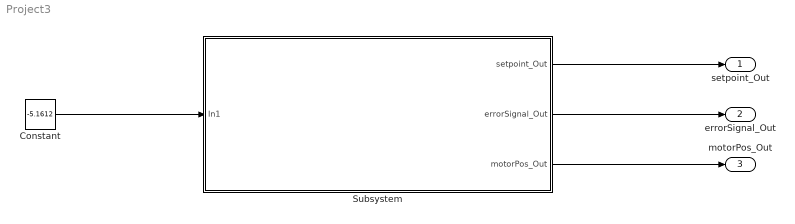
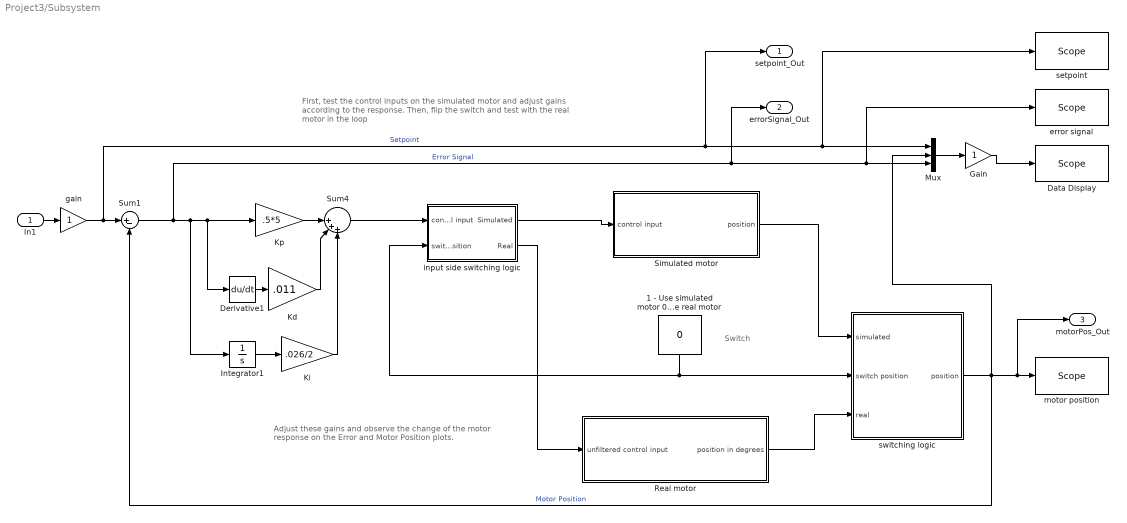
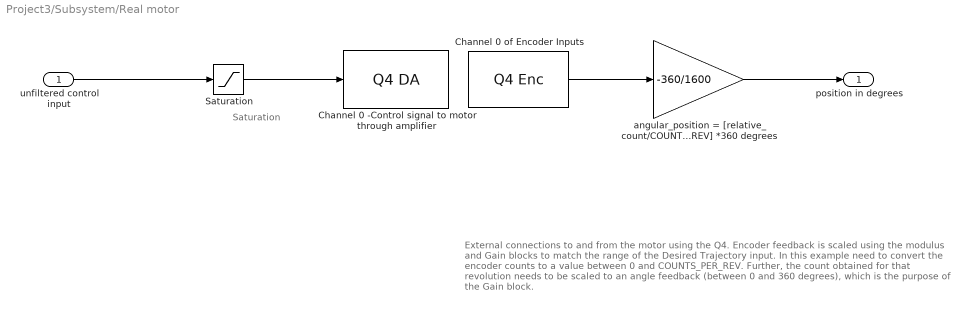
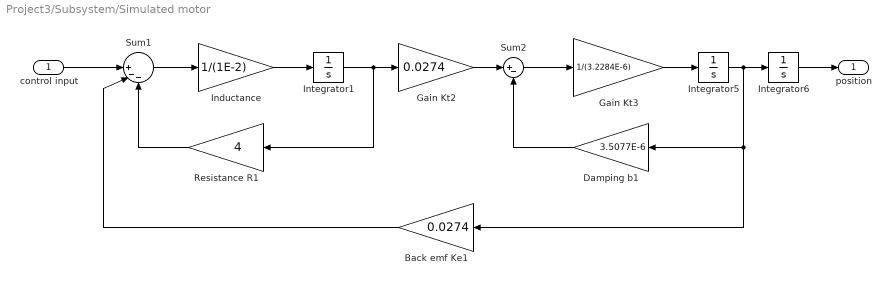
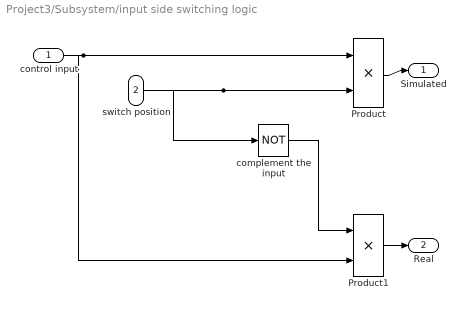
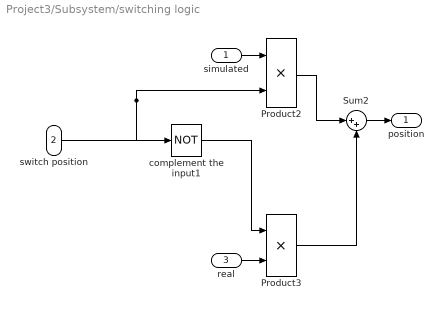
/*
 * Project3.c
 *
 * Code generation for model "Project3".
 *
 * Model version              : 1.89
 * Simulink Coder version : 8.8 (R2015a) 09-Feb-2015
 * C source code generated on : Wed Mar 15 17:53:18 2017
 *
 * Target selection: slrt.tlc
 * Note: GRT includes extra infrastructure and instrumentation for prototyping
 * Embedded hardware selection: Generic->32-bit x86 compatible
 * Code generation objectives: Unspecified
 * Validation result: Not run
 */

#include "rt_logging_mmi.h"
#include "Project3_capi.h"
#include "Project3.h"
#include "Project3_private.h"

/* Block signals (auto storage) */
B_Project3_T Project3_B;

/* Continuous states */
X_Project3_T Project3_X;

/* Block states (auto storage) */
DW_Project3_T Project3_DW;

/* External outputs (root outports fed by signals with auto storage) */
ExtY_Project3_T Project3_Y;

/* Real-time model */
RT_MODEL_Project3_T Project3_M_;
RT_MODEL_Project3_T *const Project3_M = &Project3_M_;

/*
 * This function updates continuous states using the ODE3 fixed-step
 * solver algorithm
 */
static void rt_ertODEUpdateContinuousStates(RTWSolverInfo *si )
{
  /* Solver Matrices */
  static const real_T rt_ODE3_A[3] = {
    1.0/2.0, 3.0/4.0, 1.0
  };

  static const real_T rt_ODE3_B[3][3] = {
    { 1.0/2.0, 0.0, 0.0 },

    { 0.0, 3.0/4.0, 0.0 },

    { 2.0/9.0, 1.0/3.0, 4.0/9.0 }
  };

  time_T t = rtsiGetT(si);
  time_T tnew = rtsiGetSolverStopTime(si);
  time_T h = rtsiGetStepSize(si);
  real_T *x = rtsiGetContStates(si);
  ODE3_IntgData *id = (ODE3_IntgData *)rtsiGetSolverData(si);
  real_T *y = id->y;
  real_T *f0 = id->f[0];
  real_T *f1 = id->f[1];
  real_T *f2 = id->f[2];
  real_T hB[3];
  int_T i;
  int_T nXc = 4;
  rtsiSetSimTimeStep(si,MINOR_TIME_STEP);

  /* Save the state values at time t in y, we'll use x as ynew. */
  (void) memcpy(y, x,
                (uint_T)nXc*sizeof(real_T));

  /* Assumes that rtsiSetT and ModelOutputs are up-to-date */
  /* f0 = f(t,y) */
  rtsiSetdX(si, f0);
  Project3_derivatives();

  /* f(:,2) = feval(odefile, t + hA(1), y + f*hB(:,1), args(:)(*)); */
  hB[0] = h * rt_ODE3_B[0][0];
  for (i = 0; i < nXc; i++) {
    x[i] = y[i] + (f0[i]*hB[0]);
  }

  rtsiSetT(si, t + h*rt_ODE3_A[0]);
  rtsiSetdX(si, f1);
  Project3_output();
  Project3_derivatives();

  /* f(:,3) = feval(odefile, t + hA(2), y + f*hB(:,2), args(:)(*)); */
  for (i = 0; i <= 1; i++) {
    hB[i] = h * rt_ODE3_B[1][i];
  }

  for (i = 0; i < nXc; i++) {
    x[i] = y[i] + (f0[i]*hB[0] + f1[i]*hB[1]);
  }

  rtsiSetT(si, t + h*rt_ODE3_A[1]);
  rtsiSetdX(si, f2);
  Project3_output();
  Project3_derivatives();

  /* tnew = t + hA(3);
     ynew = y + f*hB(:,3); */
  for (i = 0; i <= 2; i++) {
    hB[i] = h * rt_ODE3_B[2][i];
  }

  for (i = 0; i < nXc; i++) {
    x[i] = y[i] + (f0[i]*hB[0] + f1[i]*hB[1] + f2[i]*hB[2]);
  }

  rtsiSetT(si, tnew);
  rtsiSetSimTimeStep(si,MAJOR_TIME_STEP);
}

/* Model output function */
void Project3_output(void)
{
  real_T *lastU;
  real_T lastTime;
  real_T u1;
  real_T u2;
  if (rtmIsMajorTimeStep(Project3_M)) {
    /* set solver stop time */
    if (!(Project3_M->Timing.clockTick0+1)) {
      rtsiSetSolverStopTime(&Project3_M->solverInfo,
                            ((Project3_M->Timing.clockTickH0 + 1) *
        Project3_M->Timing.stepSize0 * 4294967296.0));
    } else {
      rtsiSetSolverStopTime(&Project3_M->solverInfo,
                            ((Project3_M->Timing.clockTick0 + 1) *
        Project3_M->Timing.stepSize0 + Project3_M->Timing.clockTickH0 *
        Project3_M->Timing.stepSize0 * 4294967296.0));
    }
  }                                    /* end MajorTimeStep */

  /* Update absolute time of base rate at minor time step */
  if (rtmIsMinorTimeStep(Project3_M)) {
    Project3_M->Timing.t[0] = rtsiGetT(&Project3_M->solverInfo);
  }

  if (rtmIsMajorTimeStep(Project3_M)) {
    /* Gain: '<S1>/gain' incorporates:
     *  Constant: '<Root>/Constant'
     */
    Project3_B.Setpoint = Project3_P.gain_Gain * Project3_P.Constant_Value;

    /* Outport: '<Root>/setpoint_Out' */
    Project3_Y.setpoint_Out = Project3_B.Setpoint;
  }

  /* Integrator: '<S4>/Integrator6' */
  Project3_B.Integrator6 = Project3_X.Integrator6_CSTATE;

  /* Product: '<S9>/Product2' incorporates:
   *  Constant: '<S1>/1 - Use simulated motor 0 - Use real motor'
   */
  Project3_B.Product2 = Project3_B.Integrator6 *
    Project3_P.Usesimulatedmotor0Userealmotor_;
  if (rtmIsMajorTimeStep(Project3_M)) {
    /* Logic: '<S9>/complement the input1' incorporates:
     *  Constant: '<S1>/1 - Use simulated motor 0 - Use real motor'
     */
    Project3_B.complementtheinput1 =
      !(Project3_P.Usesimulatedmotor0Userealmotor_ != 0.0);

    /* Level2 S-Function Block: '<S3>/Channel 0 of  Encoder Inputs ' (encquanserq8) */
    {
      SimStruct *rts = Project3_M->childSfunctions[0];
      sfcnOutputs(rts, 1);
    }

    /* Gain: '<S3>/angular_position =  [relative_count//COUNTS_PER_REV] *360 degrees' */
    Project3_B.angular_positionrelative_countC =
      Project3_P.angular_positionrelative_countC *
      Project3_B.Channel0ofEncoderInputs;

    /* Product: '<S9>/Product3' */
    Project3_B.Product3 = (real_T)Project3_B.complementtheinput1 *
      Project3_B.angular_positionrelative_countC;
  }

  /* Sum: '<S9>/Sum2' */
  Project3_B.Sum2 = Project3_B.Product2 + Project3_B.Product3;

  /* Sum: '<S1>/Sum1' */
  Project3_B.ErrorSignal = Project3_B.Setpoint - Project3_B.Sum2;

  /* Outport: '<Root>/errorSignal_Out' */
  Project3_Y.errorSignal_Out = Project3_B.ErrorSignal;

  /* Outport: '<Root>/motorPos_Out' */
  Project3_Y.motorPos_Out = Project3_B.Sum2;

  /* ok to acquire for <S2>/S-Function */
  Project3_DW.SFunction_IWORK.AcquireOK = 1;

  /* ok to acquire for <S5>/S-Function */
  Project3_DW.SFunction_IWORK_i.AcquireOK = 1;

  /* ok to acquire for <S7>/S-Function */
  Project3_DW.SFunction_IWORK_it.AcquireOK = 1;
  if (rtmIsMajorTimeStep(Project3_M)) {
    /* ok to acquire for <S8>/S-Function */
    Project3_DW.SFunction_IWORK_n.AcquireOK = 1;
  }

  /* Derivative: '<S1>/Derivative1' */
  if ((Project3_DW.TimeStampA >= Project3_M->Timing.t[0]) &&
      (Project3_DW.TimeStampB >= Project3_M->Timing.t[0])) {
    Project3_B.Derivative1 = 0.0;
  } else {
    lastTime = Project3_DW.TimeStampA;
    lastU = &Project3_DW.LastUAtTimeA;
    if (Project3_DW.TimeStampA < Project3_DW.TimeStampB) {
      if (Project3_DW.TimeStampB < Project3_M->Timing.t[0]) {
        lastTime = Project3_DW.TimeStampB;
        lastU = &Project3_DW.LastUAtTimeB;
      }
    } else {
      if (Project3_DW.TimeStampA >= Project3_M->Timing.t[0]) {
        lastTime = Project3_DW.TimeStampB;
        lastU = &Project3_DW.LastUAtTimeB;
      }
    }

    lastTime = Project3_M->Timing.t[0] - lastTime;
    Project3_B.Derivative1 = (Project3_B.ErrorSignal - *lastU) / lastTime;
  }

  /* End of Derivative: '<S1>/Derivative1' */

  /* Gain: '<S1>/Gain' */
  Project3_B.Gain[0] = Project3_P.Gain_Gain * Project3_B.Setpoint;
  Project3_B.Gain[1] = Project3_P.Gain_Gain * Project3_B.Sum2;
  Project3_B.Gain[2] = Project3_P.Gain_Gain * Project3_B.ErrorSignal;

  /* Integrator: '<S1>/Integrator1' */
  Project3_B.Integrator1 = Project3_X.Integrator1_CSTATE;

  /* Gain: '<S1>/Kd' */
  Project3_B.Kd = Project3_P.Kd_Gain * Project3_B.Derivative1;

  /* Gain: '<S1>/Ki' */
  Project3_B.Ki = Project3_P.Ki_Gain * Project3_B.Integrator1;

  /* Gain: '<S1>/Kp' */
  Project3_B.Kp = Project3_P.Kp_Gain * Project3_B.ErrorSignal;
  if (rtmIsMajorTimeStep(Project3_M)) {
    /* Logic: '<S6>/complement the input' incorporates:
     *  Constant: '<S1>/1 - Use simulated motor 0 - Use real motor'
     */
    Project3_B.complementtheinput = !(Project3_P.Usesimulatedmotor0Userealmotor_
      != 0.0);
  }

  /* Sum: '<S1>/Sum4' */
  Project3_B.Sum4 = (Project3_B.Kp + Project3_B.Kd) + Project3_B.Ki;

  /* Product: '<S6>/Product1' */
  Project3_B.Product1 = (real_T)Project3_B.complementtheinput * Project3_B.Sum4;

  /* Saturate: '<S3>/Saturation' */
  lastTime = Project3_B.Product1;
  u1 = Project3_P.Saturation_LowerSat;
  u2 = Project3_P.Saturation_UpperSat;
  if (lastTime > u2) {
    Project3_B.Saturation = u2;
  } else if (lastTime < u1) {
    Project3_B.Saturation = u1;
  } else {
    Project3_B.Saturation = lastTime;
  }

  /* End of Saturate: '<S3>/Saturation' */
  if (rtmIsMajorTimeStep(Project3_M)) {
    /* Level2 S-Function Block: '<S3>/Channel 0 -Control signal to  motor through amplifier ' (daquanserq8) */
    {
      SimStruct *rts = Project3_M->childSfunctions[1];
      sfcnOutputs(rts, 1);
    }
  }

  /* Integrator: '<S4>/Integrator5' */
  Project3_B.Integrator5 = Project3_X.Integrator5_CSTATE;

  /* Gain: '<S4>/Back emf Ke1' */
  Project3_B.BackemfKe1 = Project3_P.BackemfKe1_Gain * Project3_B.Integrator5;

  /* Gain: '<S4>/Damping b1' */
  Project3_B.Dampingb1 = Project3_P.Dampingb1_Gain * Project3_B.Integrator5;

  /* Integrator: '<S4>/Integrator1' */
  Project3_B.Integrator1_h = Project3_X.Integrator1_CSTATE_i;

  /* Gain: '<S4>/Gain Kt2' */
  Project3_B.GainKt2 = Project3_P.GainKt2_Gain * Project3_B.Integrator1_h;

  /* Sum: '<S4>/Sum2' */
  Project3_B.Sum2_e = Project3_B.GainKt2 - Project3_B.Dampingb1;

  /* Gain: '<S4>/Gain Kt3' */
  Project3_B.GainKt3 = Project3_P.GainKt3_Gain * Project3_B.Sum2_e;

  /* Product: '<S6>/Product' incorporates:
   *  Constant: '<S1>/1 - Use simulated motor 0 - Use real motor'
   */
  Project3_B.Product = Project3_B.Sum4 *
    Project3_P.Usesimulatedmotor0Userealmotor_;

  /* Gain: '<S4>/Resistance R1' */
  Project3_B.ResistanceR1 = Project3_P.ResistanceR1_Gain *
    Project3_B.Integrator1_h;

  /* Sum: '<S4>/Sum1' */
  Project3_B.Sum1 = (Project3_B.Product - Project3_B.BackemfKe1) -
    Project3_B.ResistanceR1;

  /* Gain: '<S4>/Inductance' */
  Project3_B.Inductance = Project3_P.Inductance_Gain * Project3_B.Sum1;
}

/* Model update function */
void Project3_update(void)
{
  real_T *lastU;

  /* Update for Derivative: '<S1>/Derivative1' */
  if (Project3_DW.TimeStampA == (rtInf)) {
    Project3_DW.TimeStampA = Project3_M->Timing.t[0];
    lastU = &Project3_DW.LastUAtTimeA;
  } else if (Project3_DW.TimeStampB == (rtInf)) {
    Project3_DW.TimeStampB = Project3_M->Timing.t[0];
    lastU = &Project3_DW.LastUAtTimeB;
  } else if (Project3_DW.TimeStampA < Project3_DW.TimeStampB) {
    Project3_DW.TimeStampA = Project3_M->Timing.t[0];
    lastU = &Project3_DW.LastUAtTimeA;
  } else {
    Project3_DW.TimeStampB = Project3_M->Timing.t[0];
    lastU = &Project3_DW.LastUAtTimeB;
  }

  *lastU = Project3_B.ErrorSignal;

  /* End of Update for Derivative: '<S1>/Derivative1' */
  if (rtmIsMajorTimeStep(Project3_M)) {
    rt_ertODEUpdateContinuousStates(&Project3_M->solverInfo);
  }

  /* Update absolute time for base rate */
  /* The "clockTick0" counts the number of times the code of this task has
   * been executed. The absolute time is the multiplication of "clockTick0"
   * and "Timing.stepSize0". Size of "clockTick0" ensures timer will not
   * overflow during the application lifespan selected.
   * Timer of this task consists of two 32 bit unsigned integers.
   * The two integers represent the low bits Timing.clockTick0 and the high bits
   * Timing.clockTickH0. When the low bit overflows to 0, the high bits increment.
   */
  if (!(++Project3_M->Timing.clockTick0)) {
    ++Project3_M->Timing.clockTickH0;
  }

  Project3_M->Timing.t[0] = rtsiGetSolverStopTime(&Project3_M->solverInfo);

  {
    /* Update absolute timer for sample time: [0.001s, 0.0s] */
    /* The "clockTick1" counts the number of times the code of this task has
     * been executed. The absolute time is the multiplication of "clockTick1"
     * and "Timing.stepSize1". Size of "clockTick1" ensures timer will not
     * overflow during the application lifespan selected.
     * Timer of this task consists of two 32 bit unsigned integers.
     * The two integers represent the low bits Timing.clockTick1 and the high bits
     * Timing.clockTickH1. When the low bit overflows to 0, the high bits increment.
     */
    if (!(++Project3_M->Timing.clockTick1)) {
      ++Project3_M->Timing.clockTickH1;
    }

    Project3_M->Timing.t[1] = Project3_M->Timing.clockTick1 *
      Project3_M->Timing.stepSize1 + Project3_M->Timing.clockTickH1 *
      Project3_M->Timing.stepSize1 * 4294967296.0;
  }
}
